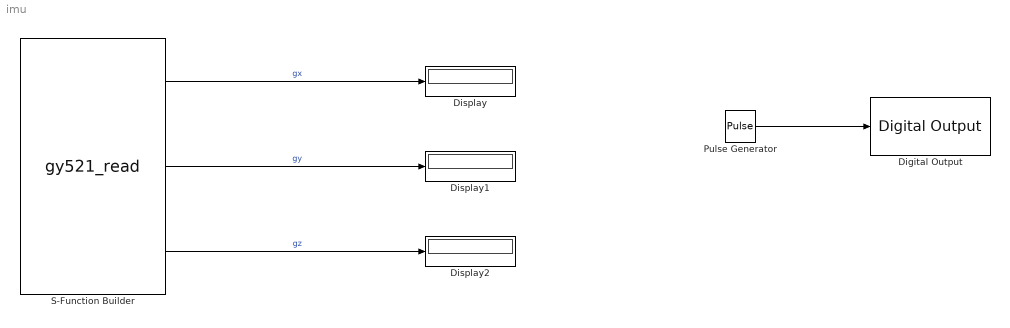
/*
 * Academic License - for use in teaching, academic research, and meeting
 * course requirements at degree granting institutions only.  Not for
 * government, commercial, or other organizational use.
 *
 * File: imu.c
 *
 * Code generated for Simulink model 'imu'.
 *
 * Model version                  : 1.11
 * Simulink Coder version         : 9.7 (R2022a) 13-Nov-2021
 * C/C++ source code generated on : Sat Apr 30 20:39:30 2022
 *
 * Target selection: ert.tlc
 * Embedded hardware selection: Atmel->AVR
 * Code generation objectives: Unspecified
 * Validation result: Not run
 */

#include "imu.h"
#include "rtwtypes.h"
#include "imu_private.h"
#include <math.h>

/* Block signals (default storage) */
B_imu_T imu_B;

/* Block states (default storage) */
DW_imu_T imu_DW;

/* Real-time model */
static RT_MODEL_imu_T imu_M_;
RT_MODEL_imu_T *const imu_M = &imu_M_;
real_T rt_roundd_snf(real_T u)
{
  real_T y;
  if (fabs(u) < 4.503599627370496E+15) {
    if (u >= 0.5) {
      y = floor(u + 0.5);
    } else if (u > -0.5) {
      y = u * 0.0;
    } else {
      y = ceil(u - 0.5);
    }
  } else {
    y = u;
  }

  return y;
}

/* Model step function */
void imu_step(void)
{
  real_T rtb_PulseGenerator;
  uint8_T tmp;

  /* DiscretePulseGenerator: '<Root>/Pulse Generator' */
  rtb_PulseGenerator = (imu_DW.clockTickCounter < imu_P.PulseGenerator_Duty) &&
    (imu_DW.clockTickCounter >= 0L) ? imu_P.PulseGenerator_Amp : 0.0;
  if (imu_DW.clockTickCounter >= imu_P.PulseGenerator_Period - 1.0) {
    imu_DW.clockTickCounter = 0L;
  } else {
    imu_DW.clockTickCounter++;
  }

  /* End of DiscretePulseGenerator: '<Root>/Pulse Generator' */

  /* MATLABSystem: '<Root>/Digital Output' */
  rtb_PulseGenerator = rt_roundd_snf(rtb_PulseGenerator);
  if (rtb_PulseGenerator < 256.0) {
    if (rtb_PulseGenerator >= 0.0) {
      tmp = (uint8_T)rtb_PulseGenerator;
    } else {
      tmp = 0U;
    }
  } else {
    tmp = MAX_uint8_T;
  }

  writeDigitalPin(13, tmp);

  /* End of MATLABSystem: '<Root>/Digital Output' */

  /* S-Function (gy521_read): '<Root>/S-Function Builder' */
  gy521_read_Outputs_wrapper(&imu_B.gx, &imu_B.gy, &imu_B.gz,
    &imu_DW.SFunctionBuilder_DSTATE);

  /* Update for S-Function (gy521_read): '<Root>/S-Function Builder' */

  /* S-Function "gy521_read_wrapper" Block: <Root>/S-Function Builder */
  gy521_read_Update_wrapper(&imu_B.gx, &imu_B.gy, &imu_B.gz,
    &imu_DW.SFunctionBuilder_DSTATE);

  {                                    /* Sample time: [0.1s, 0.0s] */
  }

  /* Update absolute time for base rate */
  /* The "clockTick0" counts the number of times the code of this task has
   * been executed. The absolute time is the multiplication of "clockTick0"
   * and "Timing.stepSize0". Size of "clockTick0" ensures timer will not
   * overflow during the application lifespan selected.
   */
  imu_M->Timing.taskTime0 =
    ((time_T)(++imu_M->Timing.clockTick0)) * imu_M->Timing.stepSize0;
}
